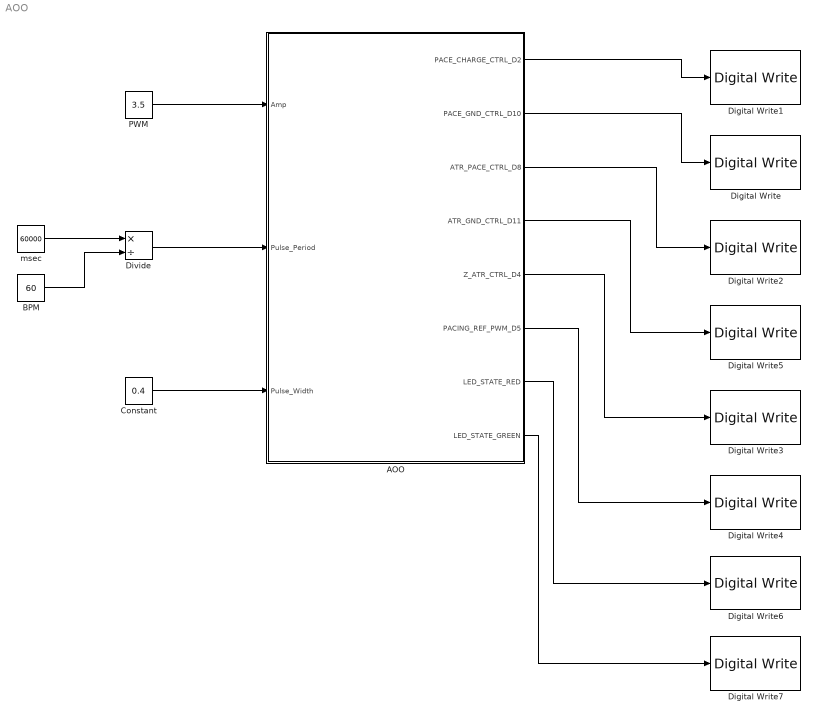
== stateflow chart AOO/AOO ==
  state pacing
    entry:
    PACING_REF_PWM_D5 = Amp;
    PACE_CHARGE_CTRL_D2=0;
    ATR_PACE_CTRL_D8= 1;
    ATR_GND_CTRL_D11= 0;
    PACE_GND_CTRL_D10=1;
    Z_ATR_CTRL_D4=0;
    LED_STATE_RED=false;
    LED_STATE_GREEN=true;
  state Chambers_Paced_Charging
    entry:
    PACING_REF_PWM_D5 = Amp;
    PACE_CHARGE_CTRL_D2=1;
    ATR_PACE_CTRL_D8= 0;
    ATR_GND_CTRL_D11= 1;
    PACE_GND_CTRL_D10=0;
    Z_ATR_CTRL_D4=0;
    LED_STATE_RED=true;
    LED_STATE_GREEN=false;
  (default) -> Chambers_Paced_Charging
  Chambers_Paced_Charging -> pacing : [after(Pulse_Period-Pulse_Width,msec)]
  pacing -> Chambers_Paced_Charging : [after(Pulse_Width,msec)]
  data: PACE_CHARGE_CTRL_D2 output; PACE_GND_CTRL_D10 output; ATR_PACE_CTRL_D8 output; ATR_GND_CTRL_D11 output; Z_ATR_CTRL_D4 output; PACING_REF_PWM_D5 output; Amp input; LED_STATE_RED output; LED_STATE_GREEN output; Pulse_Period input; Pulse_Width input

/*
 * Academic License - for use in teaching, academic research, and meeting
 * course requirements at degree granting institutions only.  Not for
 * government, commercial, or other organizational use.
 *
 * File: AOO.c
 *
 * Code generated for Simulink model 'AOO'.
 *
 * Model version                  : 8.4
 * Simulink Coder version         : 23.2 (R2023b) 01-Aug-2023
 * C/C++ source code generated on : Thu Oct 19 15:20:59 2023
 *
 * Target selection: ert.tlc
 * Embedded hardware selection: ARM Compatible->ARM Cortex
 * Code generation objectives: Unspecified
 * Validation result: Not run
 */

#include "AOO.h"
#include "rtwtypes.h"
#include <math.h>

/* Named constants for Chart: '<Root>/AOO' */
#define AOO_IN_Chambers_Paced_Charging ((uint8_T)1U)
#define AOO_IN_pacing                  ((uint8_T)2U)

/* Block signals (default storage) */
B_AOO_T AOO_B;

/* Block states (default storage) */
DW_AOO_T AOO_DW;

/* Real-time model */
static RT_MODEL_AOO_T AOO_M_;
RT_MODEL_AOO_T *const AOO_M = &AOO_M_;

/* Model step function */
void AOO_step(void)
{
  int32_T rtb_ATR_GND_CTRL_D11;
  int32_T rtb_ATR_PACE_CTRL_D8;
  int32_T rtb_PACE_CHARGE_CTRL_D2;
  int32_T rtb_PACE_GND_CTRL_D10;
  boolean_T rtb_LED_STATE_GREEN;
  boolean_T rtb_LED_STATE_RED;

  /* Chart: '<Root>/AOO' incorporates:
   *  Constant: '<Root>/BPM'
   *  Constant: '<Root>/Constant'
   *  Constant: '<Root>/PWM'
   *  Constant: '<Root>/msec'
   *  Product: '<Root>/Divide'
   */
  if (AOO_DW.temporalCounter_i1 < MAX_uint32_T) {
    AOO_DW.temporalCounter_i1++;
  }

  if (AOO_DW.is_active_c3_AOO == 0U) {
    AOO_DW.is_active_c3_AOO = 1U;
    AOO_DW.temporalCounter_i1 = 0U;
    AOO_DW.is_c3_AOO = AOO_IN_Chambers_Paced_Charging;
    AOO_B.PACING_REF_PWM_D5 = AOO_P.PWM_Value;
    rtb_PACE_CHARGE_CTRL_D2 = 1;
    rtb_ATR_PACE_CTRL_D8 = 0;
    rtb_ATR_GND_CTRL_D11 = 1;
    rtb_PACE_GND_CTRL_D10 = 0;
    rtb_LED_STATE_RED = true;
    rtb_LED_STATE_GREEN = false;
  } else if (AOO_DW.is_c3_AOO == AOO_IN_Chambers_Paced_Charging) {
    rtb_PACE_CHARGE_CTRL_D2 = 1;
    rtb_ATR_PACE_CTRL_D8 = 0;
    rtb_ATR_GND_CTRL_D11 = 1;
    rtb_PACE_GND_CTRL_D10 = 0;
    rtb_LED_STATE_RED = true;
    rtb_LED_STATE_GREEN = false;
    if (AOO_DW.temporalCounter_i1 >= (uint32_T)ceil(AOO_P.msec_Value /
         AOO_P.BPM_Value - AOO_P.Constant_Value)) {
      AOO_DW.temporalCounter_i1 = 0U;
      AOO_DW.is_c3_AOO = AOO_IN_pacing;
      AOO_B.PACING_REF_PWM_D5 = AOO_P.PWM_Value;
      rtb_PACE_CHARGE_CTRL_D2 = 0;
      rtb_ATR_PACE_CTRL_D8 = 1;
      rtb_ATR_GND_CTRL_D11 = 0;
      rtb_PACE_GND_CTRL_D10 = 1;
      rtb_LED_STATE_RED = false;
      rtb_LED_STATE_GREEN = true;
    }
  } else {
    /* case IN_pacing: */
    rtb_PACE_CHARGE_CTRL_D2 = 0;
    rtb_ATR_PACE_CTRL_D8 = 1;
    rtb_ATR_GND_CTRL_D11 = 0;
    rtb_PACE_GND_CTRL_D10 = 1;
    rtb_LED_STATE_RED = false;
    rtb_LED_STATE_GREEN = true;
    if (AOO_DW.temporalCounter_i1 >= (uint32_T)ceil(AOO_P.Constant_Value)) {
      AOO_DW.temporalCounter_i1 = 0U;
      AOO_DW.is_c3_AOO = AOO_IN_Chambers_Paced_Charging;
      AOO_B.PACING_REF_PWM_D5 = AOO_P.PWM_Value;
      rtb_PACE_CHARGE_CTRL_D2 = 1;
      rtb_ATR_PACE_CTRL_D8 = 0;
      rtb_ATR_GND_CTRL_D11 = 1;
      rtb_PACE_GND_CTRL_D10 = 0;
      rtb_LED_STATE_RED = true;
      rtb_LED_STATE_GREEN = false;
    }
  }

  /* End of Chart: '<Root>/AOO' */

  /* MATLABSystem: '<Root>/Digital Write' */
  MW_digitalIO_write(AOO_DW.obj_n2.MW_DIGITALIO_HANDLE, rtb_PACE_GND_CTRL_D10 !=
                     0);

  /* MATLABSystem: '<Root>/Digital Write1' */
  MW_digitalIO_write(AOO_DW.obj_j.MW_DIGITALIO_HANDLE, rtb_PACE_CHARGE_CTRL_D2
                     != 0);

  /* MATLABSystem: '<Root>/Digital Write2' */
  MW_digitalIO_write(AOO_DW.obj_m.MW_DIGITALIO_HANDLE, rtb_ATR_PACE_CTRL_D8 != 0);

  /* MATLABSystem: '<Root>/Digital Write3' */
  MW_digitalIO_write(AOO_DW.obj_l5.MW_DIGITALIO_HANDLE, false);

  /* MATLABSystem: '<Root>/Digital Write4' */
  MW_digitalIO_write(AOO_DW.obj_e.MW_DIGITALIO_HANDLE, AOO_B.PACING_REF_PWM_D5
                     != 0.0);

  /* MATLABSystem: '<Root>/Digital Write5' */
  MW_digitalIO_write(AOO_DW.obj_l.MW_DIGITALIO_HANDLE, rtb_ATR_GND_CTRL_D11 != 0);

  /* MATLABSystem: '<Root>/Digital Write6' */
  MW_digitalIO_write(AOO_DW.obj_n.MW_DIGITALIO_HANDLE, rtb_LED_STATE_RED);

  /* MATLABSystem: '<Root>/Digital Write7' */
  MW_digitalIO_write(AOO_DW.obj.MW_DIGITALIO_HANDLE, rtb_LED_STATE_GREEN);
}
